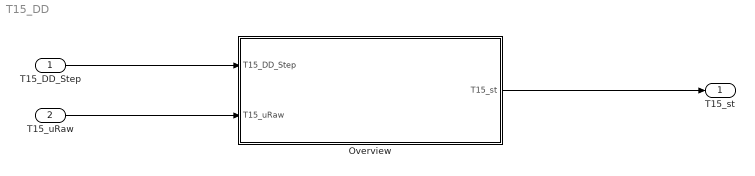
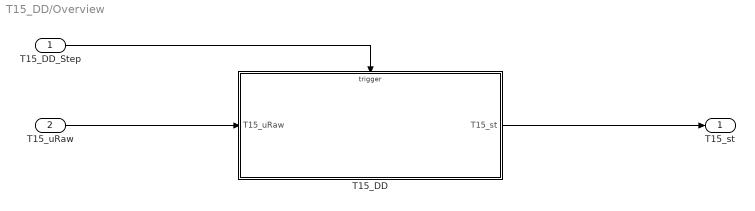
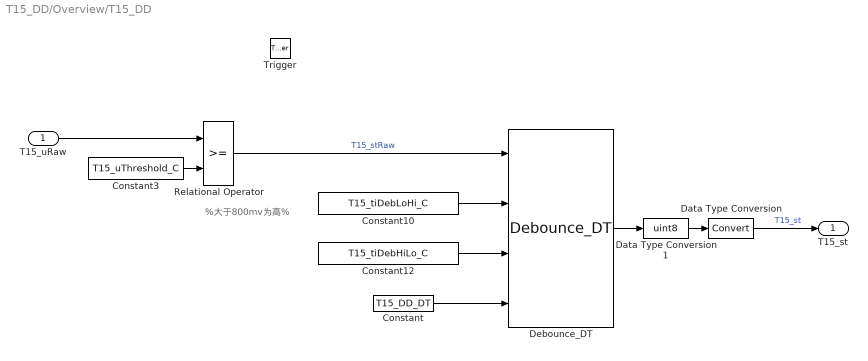
/*
 * File: T15_DD.c
 *
 * Code generated for Simulink model 'T15_DD'.
 *
 * Model version                  : 1.54
 * Simulink Coder version         : 9.4 (R2020b) 29-Jul-2020
 * C/C++ source code generated on : Thu Feb  4 09:42:22 2021
 *
 * Target selection: ert.tlc
 * Embedded hardware selection: ARM Compatible->ARM Cortex
 * Code generation objectives: Unspecified
 * Validation result: Not run
 */

#include "T15_DD.h"
#ifndef UCHAR_MAX
#include <limits.h>
#endif

#if ( UCHAR_MAX != (0xFFU) ) || ( SCHAR_MAX != (0x7F) )
#error Code was generated for compiler with different sized uchar/char. \
Consider adjusting Test hardware word size settings on the \
Hardware Implementation pane to match your compiler word sizes as \
defined in limits.h of the compiler. Alternatively, you can \
select the Test hardware is the same as production hardware option and \
select the Enable portable word sizes option on the Code Generation > \
Verification pane for ERT based targets, which will disable the \
preprocessor word size checks.
#endif

#if ( USHRT_MAX != (0xFFFFU) ) || ( SHRT_MAX != (0x7FFF) )
#error Code was generated for compiler with different sized ushort/short. \
Consider adjusting Test hardware word size settings on the \
Hardware Implementation pane to match your compiler word sizes as \
defined in limits.h of the compiler. Alternatively, you can \
select the Test hardware is the same as production hardware option and \
select the Enable portable word sizes option on the Code Generation > \
Verification pane for ERT based targets, which will disable the \
preprocessor word size checks.
#endif

#if ( UINT_MAX != (0xFFFFFFFFU) ) || ( INT_MAX != (0x7FFFFFFF) )
#error Code was generated for compiler with different sized uint/int. \
Consider adjusting Test hardware word size settings on the \
Hardware Implementation pane to match your compiler word sizes as \
defined in limits.h of the compiler. Alternatively, you can \
select the Test hardware is the same as production hardware option and \
select the Enable portable word sizes option on the Code Generation > \
Verification pane for ERT based targets, which will disable the \
preprocessor word size checks.
#endif

#if ( ULONG_MAX != (0xFFFFFFFFU) ) || ( LONG_MAX != (0x7FFFFFFF) )
#error Code was generated for compiler with different sized ulong/long. \
Consider adjusting Test hardware word size settings on the \
Hardware Implementation pane to match your compiler word sizes as \
defined in limits.h of the compiler. Alternatively, you can \
select the Test hardware is the same as production hardware option and \
select the Enable portable word sizes option on the Code Generation > \
Verification pane for ERT based targets, which will disable the \
preprocessor word size checks.
#endif

/* Exported block signals */
Switch T15_st;                         /* '<S2>/Data Type Conversion'
                                        * Terminal 15 status after debouncing
                                        */
boolean_T T15_stRaw;                   /* '<S2>/Relational Operator'
                                        * Raw value of Terminal 15 status
                                        */

/* Block states (default storage) */
DW_T15_DD_T T15_DD_DW;

/* Previous zero-crossings (trigger) states */
PrevZCX_T15_DD_T T15_DD_PrevZCX;

/* Real-time model */
static RT_MODEL_T15_DD_T T15_DD_M_;
RT_MODEL_T15_DD_T *const T15_DD_M = &T15_DD_M_;

/* Model step function */
void T15_DD_Step(void)
{
  int32_T tmp;
  uint32_T tmp_0;
  Debncd_ms tmp_1;
  boolean_T Delay2_DSTATE_tmp;

  /* RootInportFunctionCallGenerator generated from: '<Root>/T15_DD_Step' incorporates:
   *  SubSystem: '<S1>/T15_DD'
   */
  /* Delay: '<S3>/Delay' incorporates:
   *  Delay: '<S3>/Delay2'
   */
  if (T15_DD_DW.Delay2_DSTATE && (T15_DD_PrevZCX.Delay_Reset_ZCE != POS_ZCSIG))
  {
    /* MinMax: '<S3>/Min' */
    T15_DD_DW.Delay_DSTATE = 0U;
  }

  T15_DD_PrevZCX.Delay_Reset_ZCE = T15_DD_DW.Delay2_DSTATE;

  /* RelationalOperator: '<S2>/Relational Operator' incorporates:
   *  Constant: '<S2>/Constant3'
   *  Inport: '<Root>/T15_uRaw'
   *
   * Block description for '<Root>/T15_uRaw':
   *  Raw ADC value of downstream engine coolant temperature sensor signal
   */
  T15_stRaw = (T15_uRaw >= T15_uThreshold_C);

  /* Delay: '<S3>/Delay1' */
  if (T15_DD_DW.icLoad != 0) {
    /* Switch: '<S3>/Switch1' */
    T15_DD_DW.Delay1_DSTATE = T15_stRaw;
  }

  /* Switch: '<S3>/Switch2' incorporates:
   *  Delay: '<S3>/Delay'
   *  Delay: '<S3>/Delay1'
   *  MinMax: '<S3>/Min'
   *  RelationalOperator: '<S3>/Relational Operator1'
   */
  if (T15_stRaw == T15_DD_DW.Delay1_DSTATE) {
    /* Sum: '<S3>/Add' incorporates:
     *  Constant: '<S2>/Constant'
     *  Delay: '<S3>/Delay'
     */
    tmp_0 = T15_DD_DW.Delay_DSTATE + 100U;
    if (T15_DD_DW.Delay_DSTATE + 100U > 65535U) {
      tmp_0 = 65535U;
    }

    /* MinMax: '<S3>/Min' incorporates:
     *  Delay: '<S3>/Delay'
     *  Sum: '<S3>/Add'
     *  Switch: '<S3>/Switch2'
     */
    T15_DD_DW.Delay_DSTATE = (Debncd_ms)tmp_0;
  } else {
    if (T15_DD_DW.Delay_DSTATE > 100) {
      /* MinMax: '<S3>/Min' incorporates:
       *  Delay: '<S3>/Delay'
       */
      tmp_1 = T15_DD_DW.Delay_DSTATE;
    } else {
      /* MinMax: '<S3>/Min' incorporates:
       *  Constant: '<S2>/Constant'
       */
      tmp_1 = 100U;
    }

    /* Sum: '<S3>/Subtract' incorporates:
     *  Constant: '<S2>/Constant'
     */
    tmp = tmp_1 - 100;

    /* MinMax: '<S3>/Min' incorporates:
     *  Constant: '<S2>/Constant'
     *  Delay: '<S3>/Delay'
     */
    if (T15_DD_DW.Delay_DSTATE <= 100) {
      T15_DD_DW.Delay_DSTATE = 100U;
    }

    /* Sum: '<S3>/Subtract' incorporates:
     *  Constant: '<S2>/Constant'
     */
    if (T15_DD_DW.Delay_DSTATE - 100 < 0) {
      tmp = 0;
    }

    /* MinMax: '<S3>/Min' incorporates:
     *  Delay: '<S3>/Delay'
     *  Sum: '<S3>/Subtract'
     *  Switch: '<S3>/Switch2'
     */
    T15_DD_DW.Delay_DSTATE = (Debncd_ms)tmp;
  }

  /* End of Switch: '<S3>/Switch2' */

  /* Logic: '<S3>/Logical Operator5' incorporates:
   *  Delay: '<S3>/Delay1'
   *  Logic: '<S3>/Logical Operator1'
   *  Switch: '<S3>/Switch1'
   */
  Delay2_DSTATE_tmp = !T15_DD_DW.Delay1_DSTATE;

  /* Logic: '<S3>/Logical Operator' incorporates:
   *  Constant: '<S2>/Constant10'
   *  Constant: '<S2>/Constant12'
   *  Delay: '<S3>/Delay'
   *  Delay: '<S3>/Delay1'
   *  Delay: '<S3>/Delay2'
   *  Logic: '<S3>/Logical Operator2'
   *  Logic: '<S3>/Logical Operator3'
   *  Logic: '<S3>/Logical Operator5'
   *  RelationalOperator: '<S3>/Relational Operator2'
   *  RelationalOperator: '<S3>/Relational Operator3'
   *  Switch: '<S3>/Switch2'
   */
  T15_DD_DW.Delay2_DSTATE = ((Delay2_DSTATE_tmp && (T15_DD_DW.Delay_DSTATE >=
    T15_tiDebLoHi_C)) || (T15_DD_DW.Delay1_DSTATE && (T15_DD_DW.Delay_DSTATE >=
    T15_tiDebHiLo_C)));

  /* Switch: '<S3>/Switch1' incorporates:
   *  Delay: '<S3>/Delay2'
   */
  if (T15_DD_DW.Delay2_DSTATE) {
    /* Switch: '<S3>/Switch1' */
    T15_DD_DW.Delay1_DSTATE = Delay2_DSTATE_tmp;
  }

  /* DataTypeConversion: '<S2>/Data Type Conversion' incorporates:
   *  DataTypeConversion: '<S2>/Data Type Conversion1'
   */
  T15_st = (Switch)T15_DD_DW.Delay1_DSTATE;

  /* Update for Delay: '<S3>/Delay1' */
  T15_DD_DW.icLoad = 0U;

  /* End of Outputs for RootInportFunctionCallGenerator generated from: '<Root>/T15_DD_Step' */
}
